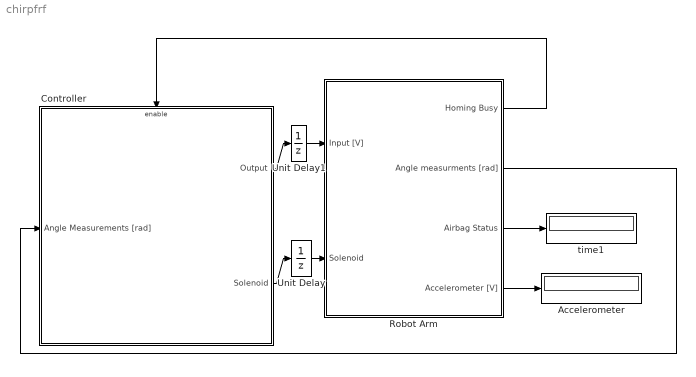
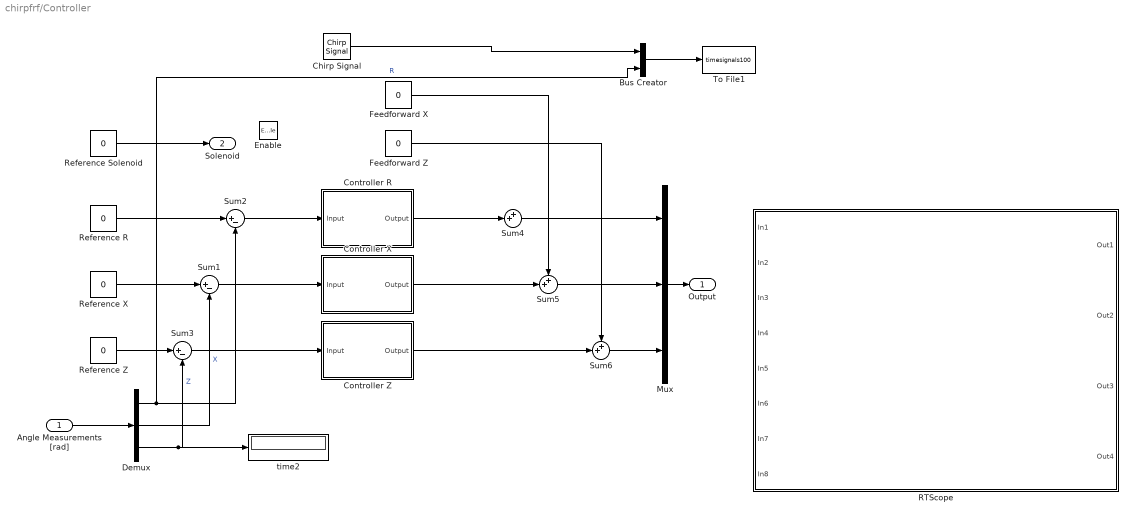
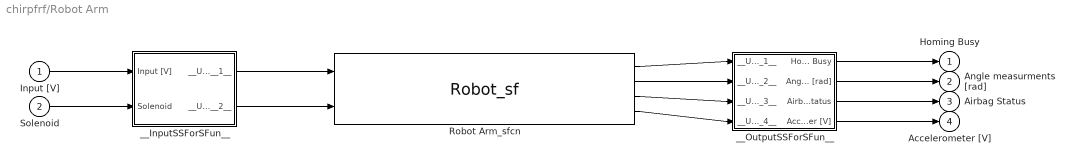
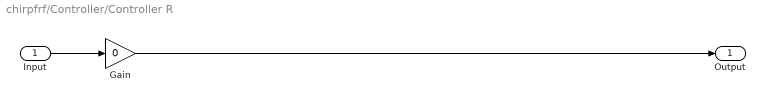
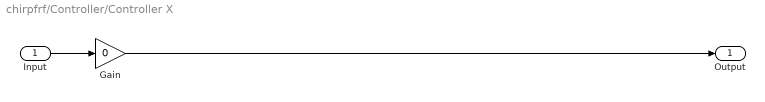
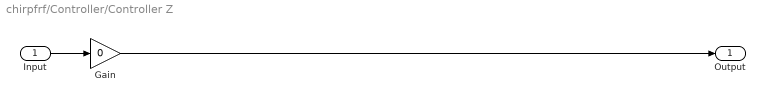
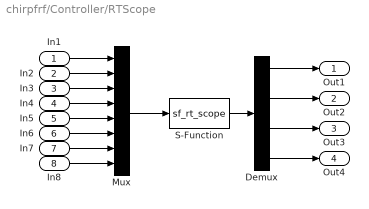
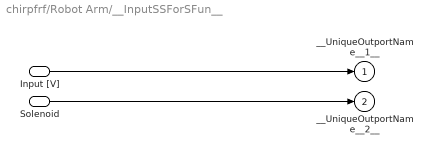
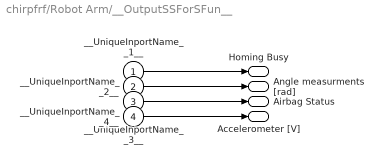
/*
 * chirpfrf.c
 *
 * Code generation for model "chirpfrf.mdl".
 *
 * Model version              : 1.907
 * Simulink Coder version : 8.1 (R2011b) 08-Jul-2011
 * C source code generated on : Sat Nov 21 15:46:52 2015
 *
 * Target selection: ectarget.tlc
 * Note: GRT includes extra infrastructure and instrumentation for prototyping
 * Embedded hardware selection: 32-bit Generic
 * Code generation objectives: Unspecified
 * Validation result: Not run
 */
#include "chirpfrf.h"
#include "chirpfrf_private.h"
#include "chirpfrf_dt.h"
#undef S_FUNCTION_NAME
#if !defined(RTW_GENERATED_SFCN_TUNABLE_PRMS_Robot_sf)
#define RTW_GENERATED_SFCN_TUNABLE_PRMS_Robot_sf
#endif

#include "Robot_sf.h"

const real_T chirpfrf_RGND = 0.0;      /* real_T ground */

/* Block signals (auto storage) */
BlockIO_chirpfrf chirpfrf_B;

/* Block states (auto storage) */
D_Work_chirpfrf chirpfrf_DWork;

/* Real-time model */
RT_MODEL_chirpfrf chirpfrf_M_;
RT_MODEL_chirpfrf *const chirpfrf_M = &chirpfrf_M_;

/*
 * Writes out MAT-file header.  Returns success or failure.
 * Returns:
 *      0 - success
 *      1 - failure
 */
int_T rt_WriteMat4FileHeader(FILE *fp, int32_T m, int32_T n, const char *name)
{
  typedef enum { ELITTLE_ENDIAN, EBIG_ENDIAN } ByteOrder;

  int16_T one = 1;
  ByteOrder byteOrder = (*((int8_T *)&one)==1) ? ELITTLE_ENDIAN : EBIG_ENDIAN;
  int32_T type = (byteOrder == ELITTLE_ENDIAN) ? 0: 1000;
  int32_T imagf = 0;
  int32_T name_len = strlen(name) + 1;
  if ((fwrite(&type, sizeof(int32_T), 1, fp) == 0) ||
      (fwrite(&m, sizeof(int32_T), 1, fp) == 0) ||
      (fwrite(&n, sizeof(int32_T), 1, fp) == 0) ||
      (fwrite(&imagf, sizeof(int32_T), 1, fp) == 0) ||
      (fwrite(&name_len, sizeof(int32_T), 1, fp) == 0) ||
      (fwrite(name, sizeof(char), name_len, fp) == 0)) {
    return(1);
  } else {
    return(0);
  }
}                                      /* end rt_WriteMat4FileHeader */

/* Model output function */
void chirpfrf_output(int_T tid)
{
  /* local block i/o variables */
  real_T rtb_Clock1;
  real_T rtb_TmpSignalConversionAtToFile[2];

  /* Reset subsysRan breadcrumbs */
  srClearBC(chirpfrf_DWork.Controller_SubsysRanBC);

  /* UnitDelay: '<Root>/Unit Delay1' */
  /* RTWBLOCK_START_COMMENT */
  chirpfrf_B.UnitDelay1[0] = chirpfrf_DWork.UnitDelay1_DSTATE[0];
  chirpfrf_B.UnitDelay1[1] = chirpfrf_DWork.UnitDelay1_DSTATE[1];
  chirpfrf_B.UnitDelay1[2] = chirpfrf_DWork.UnitDelay1_DSTATE[2];

  /* UnitDelay: '<Root>/Unit Delay' */
  chirpfrf_B.UnitDelay = chirpfrf_DWork.UnitDelay_DSTATE;

  /* RTW Generated Level2 S-Function Block: '<S2>/Robot Arm_sfcn' (Robot_sf) */
  {
    SimStruct *rts = chirpfrf_M->childSfunctions[1];
    sfcnOutputs(rts, 0);
  }

  /* Outputs for Enabled SubSystem: '<Root>/Controller' incorporates:
   *  EnablePort: '<S1>/Enable'
   */
  if (chirpfrf_B.RobotArm_sfcn_o1 > 0.0) {
    if (!chirpfrf_DWork.Controller_MODE) {
      chirpfrf_DWork.Controller_MODE = TRUE;
    }
  } else {
    if (chirpfrf_DWork.Controller_MODE) {
      chirpfrf_DWork.Controller_MODE = FALSE;
    }
  }

  if (chirpfrf_DWork.Controller_MODE) {
    /* Clock: '<S3>/Clock1' */
    rtb_Clock1 = chirpfrf_M->Timing.t[0];

    /* Gain: '<S3>/Gain' incorporates:
     *  Constant: '<S3>/deltaFreq'
     *  Constant: '<S3>/targetTime'
     *  Product: '<S3>/Product'
     */
    chirpfrf_B.Gain = chirpfrf_P.deltaFreq_Value / chirpfrf_P.targetTime_Value *
      chirpfrf_P.Gain_Gain;

    /* Trigonometry: '<S3>/Output' incorporates:
     *  Constant: '<S3>/initialFreq'
     *  Product: '<S3>/Product1'
     *  Product: '<S3>/Product2'
     *  Sum: '<S3>/Sum'
     */
    chirpfrf_B.Output = sin((rtb_Clock1 * chirpfrf_B.Gain +
      chirpfrf_P.initialFreq_Value) * rtb_Clock1);

    /* SignalConversion: '<S1>/TmpSignal ConversionAtTo File1Inport1' */
    rtb_TmpSignalConversionAtToFile[0] = chirpfrf_B.Output;
    rtb_TmpSignalConversionAtToFile[1] = chirpfrf_B.RobotArm_sfcn_o2[0];

    /* ToFile: '<S1>/To File1' */
    if (!(++chirpfrf_DWork.ToFile1_IWORK.Decimation % 1) &&
        (chirpfrf_DWork.ToFile1_IWORK.Count*3)+1 < 100000000 ) {
      FILE *fp = (FILE *) chirpfrf_DWork.ToFile1_PWORK.FilePtr;
      if (fp != (NULL)) {
        real_T u[3];
        chirpfrf_DWork.ToFile1_IWORK.Decimation = 0;
        u[0] = chirpfrf_M->Timing.t[1];
        u[1] = rtb_TmpSignalConversionAtToFile[0];
        u[2] = rtb_TmpSignalConversionAtToFile[1];
        if (fwrite(u, sizeof(real_T), 3, fp) != 3) {
          rtmSetErrorStatus(chirpfrf_M,
                            "Error writing to MAT-file timesignals100.mat");
          return;
        }

        if (((++chirpfrf_DWork.ToFile1_IWORK.Count)*3)+1 >= 100000000) {
          (void)fprintf(stdout,
                        "*** The ToFile block will stop logging data before\n"
                        "    the simulation has ended, because it has reached\n"
                        "    the maximum number of elements (100000000)\n"
                        "    allowed in MAT-file timesignals100.mat.\n");
        }
      }
    }

    /* Sum: '<S1>/Sum4' incorporates:
     *  Constant: '<S1>/Reference R'
     *  Gain: '<S4>/Gain'
     *  Sum: '<S1>/Sum2'
     */
    chirpfrf_B.Sum4 = (chirpfrf_P.ReferenceR_Value -
                       chirpfrf_B.RobotArm_sfcn_o2[0]) * chirpfrf_P.Gain_Gain_b
      + 0.0;

    /* Sum: '<S1>/Sum5' incorporates:
     *  Constant: '<S1>/Feedforward X'
     *  Constant: '<S1>/Reference X'
     *  Gain: '<S5>/Gain'
     *  Sum: '<S1>/Sum1'
     */
    chirpfrf_B.Sum5 = (chirpfrf_P.ReferenceX_Value -
                       chirpfrf_B.RobotArm_sfcn_o2[1]) * chirpfrf_P.Gain_Gain_p
      + chirpfrf_P.FeedforwardX_Value;

    /* Sum: '<S1>/Sum6' incorporates:
     *  Constant: '<S1>/Feedforward Z'
     *  Constant: '<S1>/Reference Z'
     *  Gain: '<S6>/Gain'
     *  Sum: '<S1>/Sum3'
     */
    chirpfrf_B.Sum6 = (chirpfrf_P.ReferenceZ_Value -
                       chirpfrf_B.RobotArm_sfcn_o2[2]) * chirpfrf_P.Gain_Gain_a
      + chirpfrf_P.FeedforwardZ_Value;

    /* Constant: '<S1>/Reference Solenoid' */
    chirpfrf_B.ReferenceSolenoid = chirpfrf_P.ReferenceSolenoid_Value;

    /* Level2 S-Function Block: '<S7>/S-Function' (sf_rt_scope) */
    {
      SimStruct *rts = chirpfrf_M->childSfunctions[0];
      sfcnOutputs(rts, 0);
    }

    srUpdateBC(chirpfrf_DWork.Controller_SubsysRanBC);
  }

  /* End of Outputs for SubSystem: '<Root>/Controller' */

  /* tid is required for a uniform function interface.
   * Argument tid is not used in the function. */
  UNUSED_PARAMETER(tid);
}

/* Model update function */
void chirpfrf_update(int_T tid)
{
  /* Update for UnitDelay: '<Root>/Unit Delay1' */
  chirpfrf_DWork.UnitDelay1_DSTATE[0] = chirpfrf_B.Sum4;
  chirpfrf_DWork.UnitDelay1_DSTATE[1] = chirpfrf_B.Sum5;
  chirpfrf_DWork.UnitDelay1_DSTATE[2] = chirpfrf_B.Sum6;

  /* Update for UnitDelay: '<Root>/Unit Delay' */
  chirpfrf_DWork.UnitDelay_DSTATE = chirpfrf_B.ReferenceSolenoid;

  /* RTW Generated Level2 S-Function Block: '<S2>/Robot Arm_sfcn' (Robot_sf) */
  {
    SimStruct *rts = chirpfrf_M->childSfunctions[1];
    sfcnUpdate(rts, 0);
    if (ssGetErrorStatus(rts) != (NULL))
      return;
  }

  /* Update absolute time for base rate */
  /* The "clockTick0" counts the number of times the code of this task has
   * been executed. The absolute time is the multiplication of "clockTick0"
   * and "Timing.stepSize0". Size of "clockTick0" ensures timer will not
   * overflow during the application lifespan selected.
   * Timer of this task consists of two 32 bit unsigned integers.
   * The two integers represent the low bits Timing.clockTick0 and the high bits
   * Timing.clockTickH0. When the low bit overflows to 0, the high bits increment.
   */
  if (!(++chirpfrf_M->Timing.clockTick0)) {
    ++chirpfrf_M->Timing.clockTickH0;
  }

  chirpfrf_M->Timing.t[0] = chirpfrf_M->Timing.clockTick0 *
    chirpfrf_M->Timing.stepSize0 + chirpfrf_M->Timing.clockTickH0 *
    chirpfrf_M->Timing.stepSize0 * 4294967296.0;

  {
    /* Update absolute timer for sample time: [0.000244140625s, 0.0s] */
    /* The "clockTick1" counts the number of times the code of this task has
     * been executed. The absolute time is the multiplication of "clockTick1"
     * and "Timing.stepSize1". Size of "clockTick1" ensures timer will not
     * overflow during the application lifespan selected.
     * Timer of this task consists of two 32 bit unsigned integers.
     * The two integers represent the low bits Timing.clockTick1 and the high bits
     * Timing.clockTickH1. When the low bit overflows to 0, the high bits increment.
     */
    if (!(++chirpfrf_M->Timing.clockTick1)) {
      ++chirpfrf_M->Timing.clockTickH1;
    }

    chirpfrf_M->Timing.t[1] = chirpfrf_M->Timing.clockTick1 *
      chirpfrf_M->Timing.stepSize1 + chirpfrf_M->Timing.clockTickH1 *
      chirpfrf_M->Timing.stepSize1 * 4294967296.0;
  }

  /* tid is required for a uniform function interface.
   * Argument tid is not used in the function. */
  UNUSED_PARAMETER(tid);
}
